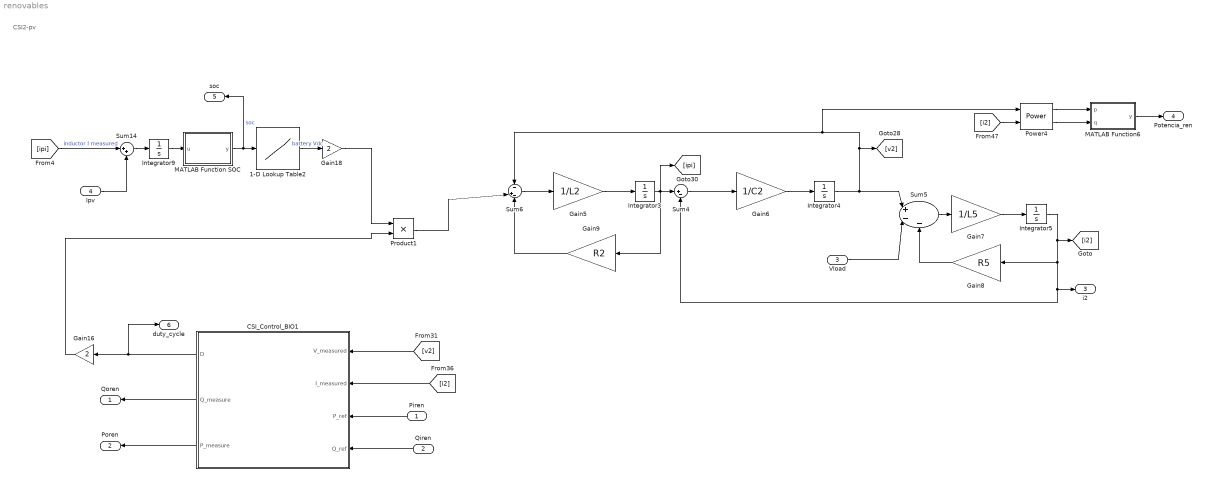
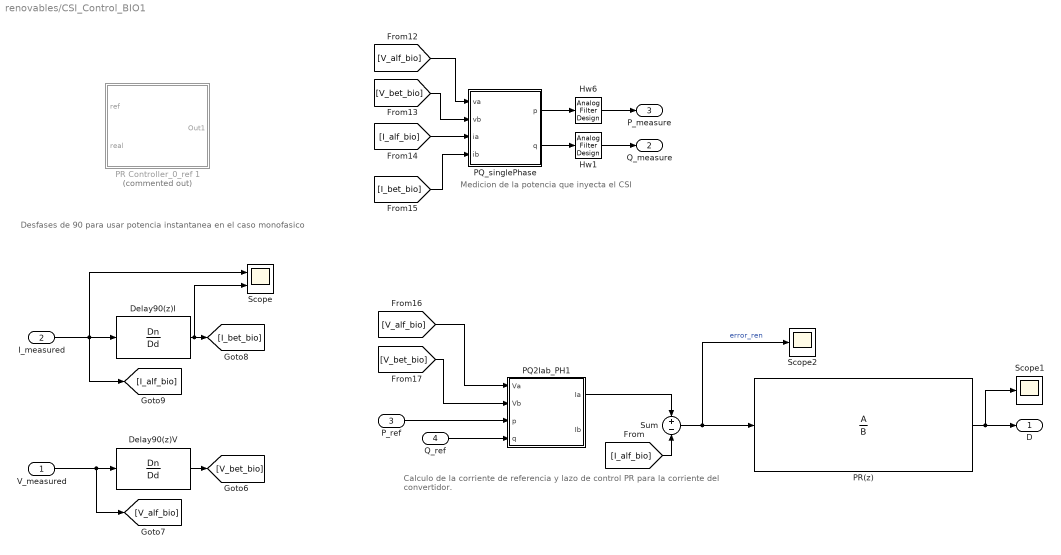
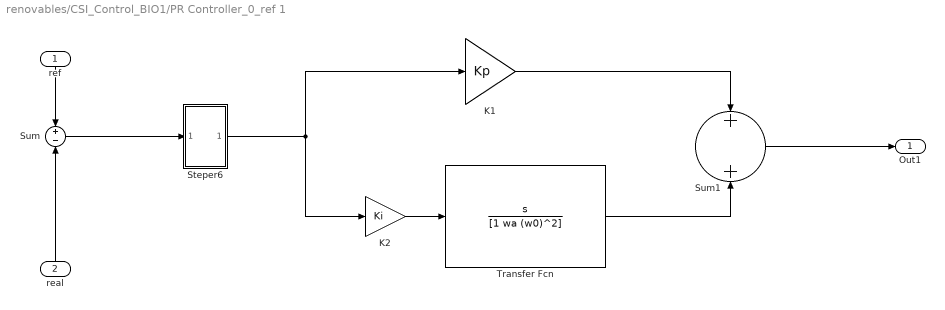
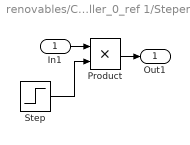
== matlab function renovables/CSI_Control_BIO1/PQ2Iab_PH1 ==
function [Ia, Ib] = fcn(Va, Vb, p, q)
%#codegen
% Ia=0;
% Ib=0;
% divide by zero protection
if(abs((Va^2+Vb^2))<=1000*eps(0))
    det = 1/eps(0);
else
    det = 1/(Va^2+Vb^2); % constante auxiliar
end
%det = 1/(Va^2+Vb^2);

Mat = det*[Va Vb; Vb -Va];

Iab = Mat*[2*p;2*q];

Iaaux = Iab(1);
Ibaux = Iab(2);

ilim=1e3;

if(Iaaux>ilim)
    Iaaux=ilim;
end
if(Iaaux<-ilim)
    Iaaux =-ilim;    
end

if(isnan(Iaaux))
    Iaaux=0;
end
%-----------------


if(Ibaux>ilim)
    Ibaux=ilim;
end
if(Ibaux<-ilim)
    Ibaux =-ilim;    
end

if(isnan(Ibaux))
    Ibaux=0;
end
%-----------------


Ia = Iaaux;
Ib = Ibaux;

== matlab function renovables/CSI_Control_BIO1/PQ_singlePhase ==
function [p, q] = fcn(va, vb, ia, ib)
% Esta funcion calcula la potencia activa y reactiva instantanea
% para el caso mnosofasico. En la revision de 2 papers he observado
% que una manera de extender la teoria de potencia al caso monofasico
% es asumiendo la tension o corriente de una fase como la componente
% alpha y hacer un desfase de 90 grados para obtener una version
% artificial de beta.

paux=va*ia+vb*ib;
if(paux > 20e4)
    paux = 20e4;
end
if(paux < -20e4)
    paux = -20e-4;
end

p = paux/2; % potencia activa instantanea

qaux = vb*ia-va*ib;

if(qaux>20e4)
    qaux=20e4;
end
if(qaux<-20e4)
    qaux=-20e4;
end

q = qaux/2; % potencia reactiva instantanea

== matlab function renovables/MATLAB Function SOC  ==
function y = fcn(u)

y = -0.03536*u+100;

== matlab function renovables/MATLAB Function6 ==
function y = fcn(p,q)

y = sqrt(p^2+q^2);

/*
 * File: renovables.c
 *
 * Code generated for Simulink model 'renovables'.
 *
 * Model version                  : 1.7
 * Simulink Coder version         : 8.14 (R2018a) 06-Feb-2018
 * C/C++ source code generated on : Fri Nov 29 12:13:17 2019
 *
 * Target selection: ert.tlc
 * Embedded hardware selection: Intel->x86-64 (Windows64)
 * Code generation objectives: Unspecified
 * Validation result: Not run
 */

#include "renovables.h"
#include "renovables_private.h"

/* Block signals (default storage) */
B_renovables_T renovables_B;

/* Continuous states */
X_renovables_T renovables_X;

/* Block states (default storage) */
DW_renovables_T renovables_DW;

/* External inputs (root inport signals with default storage) */
ExtU_renovables_T renovables_U;

/* External outputs (root outports fed by signals with default storage) */
ExtY_renovables_T renovables_Y;

/* Real-time model */
RT_MODEL_renovables_T renovables_M_;
RT_MODEL_renovables_T *const renovables_M = &renovables_M_;

/*
 * Time delay interpolation routine
 *
 * The linear interpolation is performed using the formula:
 *
 *          (t2 - tMinusDelay)         (tMinusDelay - t1)
 * u(t)  =  ----------------- * u1  +  ------------------- * u2
 *              (t2 - t1)                  (t2 - t1)
 */
real_T rt_TDelayInterpolate(
  real_T tMinusDelay,                  /* tMinusDelay = currentSimTime - delay */
  real_T tStart,
  real_T *tBuf,
  real_T *uBuf,
  int_T bufSz,
  int_T *lastIdx,
  int_T oldestIdx,
  int_T newIdx,
  real_T initOutput,
  boolean_T discrete,
  boolean_T minorStepAndTAtLastMajorOutput)
{
  int_T i;
  real_T yout, t1, t2, u1, u2;

  /*
   * If there is only one data point in the buffer, this data point must be
   * the t= 0 and tMinusDelay > t0, it ask for something unknown. The best
   * guess if initial output as well
   */
  if ((newIdx == 0) && (oldestIdx ==0 ) && (tMinusDelay > tStart))
    return initOutput;

  /*
   * If tMinusDelay is less than zero, should output initial value
   */
  if (tMinusDelay <= tStart)
    return initOutput;

  /* For fixed buffer extrapolation:
   * if tMinusDelay is small than the time at oldestIdx, if discrete, output
   * tailptr value,  else use tailptr and tailptr+1 value to extrapolate
   * It is also for fixed buffer. Note: The same condition can happen for transport delay block where
   * use tStart and and t[tail] other than using t[tail] and t[tail+1].
   * See below
   */
  if ((tMinusDelay <= tBuf[oldestIdx] ) ) {
    if (discrete) {
      return(uBuf[oldestIdx]);
    } else {
      int_T tempIdx= oldestIdx + 1;
      if (oldestIdx == bufSz-1)
        tempIdx = 0;
      t1= tBuf[oldestIdx];
      t2= tBuf[tempIdx];
      u1= uBuf[oldestIdx];
      u2= uBuf[tempIdx];
      if (t2 == t1) {
        if (tMinusDelay >= t2) {
          yout = u2;
        } else {
          yout = u1;
        }
      } else {
        real_T f1 = (t2-tMinusDelay) / (t2-t1);
        real_T f2 = 1.0 - f1;

        /*
         * Use Lagrange's interpolation formula.  Exact outputs at t1, t2.
         */
        yout = f1*u1 + f2*u2;
      }

      return yout;
    }
  }

  /*
   * When block does not have direct feedthrough, we use the table of
   * values to extrapolate off the end of the table for delays that are less
   * than 0 (less then step size).  This is not completely accurate.  The
   * chain of events is as follows for a given time t.  Major output - look
   * in table.  Update - add entry to table.  Now, if we call the output at
   * time t again, there is a new entry in the table. For very small delays,
   * this means that we will have a different answer from the previous call
   * to the output fcn at the same time t.  The following code prevents this
   * from happening.
   */
  if (minorStepAndTAtLastMajorOutput) {
    /* pretend that the new entry has not been added to table */
    if (newIdx != 0) {
      if (*lastIdx == newIdx) {
        (*lastIdx)--;
      }

      newIdx--;
    } else {
      if (*lastIdx == newIdx) {
        *lastIdx = bufSz-1;
      }

      newIdx = bufSz - 1;
    }
  }

  i = *lastIdx;
  if (tBuf[i] < tMinusDelay) {
    /* Look forward starting at last index */
    while (tBuf[i] < tMinusDelay) {
      /* May occur if the delay is less than step-size - extrapolate */
      if (i == newIdx)
        break;
      i = ( i < (bufSz-1) ) ? (i+1) : 0;/* move through buffer */
    }
  } else {
    /*
     * Look backwards starting at last index which can happen when the
     * delay time increases.
     */
    while (tBuf[i] >= tMinusDelay) {
      /*
       * Due to the entry condition at top of function, we
       * should never hit the end.
       */
      i = (i > 0) ? i-1 : (bufSz-1);   /* move through buffer */
    }

    i = ( i < (bufSz-1) ) ? (i+1) : 0;
  }

  *lastIdx = i;
  if (discrete) {
    /*
     * tempEps = 128 * eps;
     * localEps = max(tempEps, tempEps*fabs(tBuf[i]))/2;
     */
    double tempEps = (DBL_EPSILON) * 128.0;
    double localEps = tempEps * fabs(tBuf[i]);
    if (tempEps > localEps) {
      localEps = tempEps;
    }

    localEps = localEps / 2.0;
    if (tMinusDelay >= (tBuf[i] - localEps)) {
      yout = uBuf[i];
    } else {
      if (i == 0) {
        yout = uBuf[bufSz-1];
      } else {
        yout = uBuf[i-1];
      }
    }
  } else {
    if (i == 0) {
      t1 = tBuf[bufSz-1];
      u1 = uBuf[bufSz-1];
    } else {
      t1 = tBuf[i-1];
      u1 = uBuf[i-1];
    }

    t2 = tBuf[i];
    u2 = uBuf[i];
    if (t2 == t1) {
      if (tMinusDelay >= t2) {
        yout = u2;
      } else {
        yout = u1;
      }
    } else {
      real_T f1 = (t2-tMinusDelay) / (t2-t1);
      real_T f2 = 1.0 - f1;

      /*
       * Use Lagrange's interpolation formula.  Exact outputs at t1, t2.
       */
      yout = f1*u1 + f2*u2;
    }
  }

  return(yout);
}

real_T look1_binlxpw(real_T u0, const real_T bp0[], const real_T table[],
                     uint32_T maxIndex)
{
  real_T frac;
  uint32_T iRght;
  uint32_T iLeft;
  uint32_T bpIdx;

  /* Lookup 1-D
     Search method: 'binary'
     Use previous index: 'off'
     Interpolation method: 'Linear point-slope'
     Extrapolation method: 'Linear'
     Use last breakpoint for index at or above upper limit: 'off'
     Remove protection against out-of-range input in generated code: 'off'
   */
  /* Prelookup - Index and Fraction
     Index Search method: 'binary'
     Extrapolation method: 'Linear'
     Use previous index: 'off'
     Use last breakpoint for index at or above upper limit: 'off'
     Remove protection against out-of-range input in generated code: 'off'
   */
  if (u0 <= bp0[0U]) {
    iLeft = 0U;
    frac = (u0 - bp0[0U]) / (bp0[1U] - bp0[0U]);
  } else if (u0 < bp0[maxIndex]) {
    /* Binary Search */
    bpIdx = maxIndex >> 1U;
    iLeft = 0U;
    iRght = maxIndex;
    while (iRght - iLeft > 1U) {
      if (u0 < bp0[bpIdx]) {
        iRght = bpIdx;
      } else {
        iLeft = bpIdx;
      }

      bpIdx = (iRght + iLeft) >> 1U;
    }

    frac = (u0 - bp0[iLeft]) / (bp0[iLeft + 1U] - bp0[iLeft]);
  } else {
    iLeft = maxIndex - 1U;
    frac = (u0 - bp0[maxIndex - 1U]) / (bp0[maxIndex] - bp0[maxIndex - 1U]);
  }

  /* Interpolation 1-D
     Interpolation method: 'Linear point-slope'
     Use last breakpoint for index at or above upper limit: 'off'
     Overflow mode: 'portable wrapping'
   */
  return (table[iLeft + 1U] - table[iLeft]) * frac + table[iLeft];
}

/* This function updates continuous states using the ODE8 fixed-step
 * solver algorithm
 */
static void rt_ertODEUpdateContinuousStates(RTWSolverInfo *si )
{
  /* Solver Matrices */
#define renovables_NSTAGES             13

  static real_T rt_ODE8_B[13] = {
    4.174749114153025E-2, 0.0, 0.0, 0.0,
    0.0, -5.54523286112393E-2, 2.393128072011801E-1, 7.03510669403443E-1,
    -7.597596138144609E-1, 6.605630309222863E-1, 1.581874825101233E-1,
    -2.381095387528628E-1, 2.5E-1
  };

  static real_T rt_ODE8_C[13] = {
    0.0, 5.555555555555556E-2, 8.333333333333333E-2, 1.25E-1,
    3.125E-1, 3.75E-1, 1.475E-1, 4.65E-1,
    5.648654513822596E-1, 6.5E-1, 9.246562776405044E-1, 1.0, 1.0
  };

  static real_T rt_ODE8_A[13][13] = {
    /* rt_ODE8_A[0][] */
    { 0.0, 0.0, 0.0, 0.0,
      0.0, 0.0, 0.0, 0.0,
      0.0, 0.0, 0.0, 0.0, 0.0 },

    /* rt_ODE8_A[1][] */
    { 5.555555555555556E-2, 0.0, 0.0, 0.0,
      0.0, 0.0, 0.0, 0.0,
      0.0, 0.0, 0.0, 0.0, 0.0 },

    /* rt_ODE8_A[2][] */
    { 2.083333333333333E-2, 6.25E-2, 0.0, 0.0,
      0.0, 0.0, 0.0, 0.0,
      0.0, 0.0, 0.0, 0.0, 0.0 },

    /* rt_ODE8_A[3][] */
    { 3.125E-2, 0.0, 9.375E-2, 0.0,
      0.0, 0.0, 0.0, 0.0,
      0.0, 0.0, 0.0, 0.0, 0.0 },

    /* rt_ODE8_A[4][] */
    { 3.125E-1, 0.0, -1.171875, 1.171875,
      0.0, 0.0, 0.0, 0.0,
      0.0, 0.0, 0.0, 0.0, 0.0 },

    /* rt_ODE8_A[5][] */
    { 3.75E-2, 0.0, 0.0, 1.875E-1,
      1.5E-1, 0.0, 0.0, 0.0,
      0.0, 0.0, 0.0, 0.0, 0.0 },

    /* rt_ODE8_A[6][] */
    { 4.791013711111111E-2, 0.0, 0.0, 1.122487127777778E-1,
      -2.550567377777778E-2, 1.284682388888889E-2, 0.0, 0.0,
      0.0, 0.0, 0.0, 0.0, 0.0 },

    /* rt_ODE8_A[7][] */
    { 1.691798978729228E-2, 0.0, 0.0, 3.878482784860432E-1,
      3.597736985150033E-2, 1.969702142156661E-1, -1.727138523405018E-1, 0.0,
      0.0, 0.0, 0.0, 0.0, 0.0 },

    /* rt_ODE8_A[8][] */
    { 6.90957533591923E-2, 0.0, 0.0, -6.342479767288542E-1,
      -1.611975752246041E-1, 1.386503094588253E-1, 9.409286140357563E-1,
      2.11636326481944E-1,
      0.0, 0.0, 0.0, 0.0, 0.0 },

    /* rt_ODE8_A[9][] */
    { 1.835569968390454E-1, 0.0, 0.0, -2.468768084315592,
      -2.912868878163005E-1, -2.647302023311738E-2, 2.8478387641928,
      2.813873314698498E-1,
      1.237448998633147E-1, 0.0, 0.0, 0.0, 0.0 },

    /* rt_ODE8_A[10][] */
    { -1.215424817395888, 0.0, 0.0, 1.667260866594577E1,
      9.157418284168179E-1, -6.056605804357471, -1.600357359415618E1,
      1.484930308629766E1,
      -1.337157573528985E1, 5.134182648179638, 0.0, 0.0, 0.0 },

    /* rt_ODE8_A[11][] */
    { 2.588609164382643E-1, 0.0, 0.0, -4.774485785489205,
      -4.350930137770325E-1, -3.049483332072241, 5.577920039936099,
      6.155831589861039,
      -5.062104586736938, 2.193926173180679, 1.346279986593349E-1, 0.0, 0.0 },

    /* rt_ODE8_A[12][] */
    { 8.224275996265075E-1, 0.0, 0.0, -1.165867325727766E1,
      -7.576221166909362E-1, 7.139735881595818E-1, 1.207577498689006E1,
      -2.127659113920403,
      1.990166207048956, -2.342864715440405E-1, 1.758985777079423E-1, 0.0, 0.0 },
  };

  time_T t = rtsiGetT(si);
  time_T tnew = rtsiGetSolverStopTime(si);
  time_T h = rtsiGetStepSize(si);
  real_T *x = rtsiGetContStates(si);
  ODE8_IntgData *intgData = (ODE8_IntgData *) rtsiGetSolverData(si);
  real_T *deltaY = intgData->deltaY;
  real_T *x0 = intgData->x0;
  real_T* f[renovables_NSTAGES];
  int idx,stagesIdx,statesIdx;
  double deltaX;
  int_T nXc = 16;
  rtsiSetSimTimeStep(si,MINOR_TIME_STEP);
  f[0] = intgData->f[0];
  f[1] = intgData->f[1];
  f[2] = intgData->f[2];
  f[3] = intgData->f[3];
  f[4] = intgData->f[4];
  f[5] = intgData->f[5];
  f[6] = intgData->f[6];
  f[7] = intgData->f[7];
  f[8] = intgData->f[8];
  f[9] = intgData->f[9];
  f[10] = intgData->f[10];
  f[11] = intgData->f[11];
  f[12] = intgData->f[12];

  /* Save the state values at time t in y and x0*/
  (void) memset(deltaY, 0,
                (uint_T)nXc*sizeof(real_T));
  (void) memcpy(x0, x,
                nXc*sizeof(real_T));
  for (stagesIdx=0;stagesIdx<renovables_NSTAGES;stagesIdx++) {
    (void) memcpy(x, x0,
                  (uint_T)nXc*sizeof(real_T));
    for (statesIdx=0;statesIdx<nXc;statesIdx++) {
      deltaX = 0;
      for (idx=0;idx<stagesIdx;idx++) {
        deltaX = deltaX + h*rt_ODE8_A[stagesIdx][idx]*f[idx][statesIdx];
      }

      x[statesIdx] = x0[statesIdx] + deltaX;
    }

    if (stagesIdx==0) {
      rtsiSetdX(si, f[stagesIdx]);
      renovables_derivatives();
    } else {
      (stagesIdx==renovables_NSTAGES-1)? rtsiSetT(si, tnew) : rtsiSetT(si, t + h*
        rt_ODE8_C[stagesIdx]);
      rtsiSetdX(si, f[stagesIdx]);
      renovables_step();
      renovables_derivatives();
    }

    for (statesIdx=0;statesIdx<nXc;statesIdx++) {
      deltaY[statesIdx] = deltaY[statesIdx] + h*rt_ODE8_B[stagesIdx]*f[stagesIdx]
        [statesIdx];
    }
  }

  for (statesIdx=0;statesIdx<nXc;statesIdx++) {
    x[statesIdx] = x0[statesIdx] + deltaY[statesIdx];
  }

  rtsiSetSimTimeStep(si,MAJOR_TIME_STEP);
}

real_T rt_hypotd_snf(real_T u0, real_T u1)
{
  real_T y;
  real_T a;
  a = fabs(u0);
  y = fabs(u1);
  if (a < y) {
    a /= y;
    y *= sqrt(a * a + 1.0);
  } else if (a > y) {
    y /= a;
    y = sqrt(y * y + 1.0) * a;
  } else {
    if (!rtIsNaN(y)) {
      y = a * 1.4142135623730951;
    }
  }

  return y;
}

real_T rt_atan2d_snf(real_T u0, real_T u1)
{
  real_T y;
  int32_T u0_0;
  int32_T u1_0;
  if (rtIsNaN(u0) || rtIsNaN(u1)) {
    y = (rtNaN);
  } else if (rtIsInf(u0) && rtIsInf(u1)) {
    if (u0 > 0.0) {
      u0_0 = 1;
    } else {
      u0_0 = -1;
    }

    if (u1 > 0.0) {
      u1_0 = 1;
    } else {
      u1_0 = -1;
    }

    y = atan2(u0_0, u1_0);
  } else if (u1 == 0.0) {
    if (u0 > 0.0) {
      y = RT_PI / 2.0;
    } else if (u0 < 0.0) {
      y = -(RT_PI / 2.0);
    } else {
      y = 0.0;
    }
  } else {
    y = atan2(u0, u1);
  }

  return y;
}

/* Model step function */
void renovables_step(void)
{
  /* local block i/o variables */
  real_T rtb_integrator;
  real_T rtb_TransportDelay;
  real_T rtb_integrator_h;
  real_T rtb_TransportDelay_j;
  real_T rtb_integrator_c;
  real_T rtb_TransportDelay_m;
  real_T rtb_integrator_d;
  real_T rtb_TransportDelay_g;
  real_T paux;
  real_T rtb_Gain1;
  real_T rtb_phi;
  if (rtmIsMajorTimeStep(renovables_M)) {
    /* set solver stop time */
    rtsiSetSolverStopTime(&renovables_M->solverInfo,
                          ((renovables_M->Timing.clockTick0+1)*
      renovables_M->Timing.stepSize0));
  }                                    /* end MajorTimeStep */

  /* Update absolute time of base rate at minor time step */
  if (rtmIsMinorTimeStep(renovables_M)) {
    renovables_M->Timing.t[0] = rtsiGetT(&renovables_M->solverInfo);
  }

  /* Outport: '<Root>/Qoren' incorporates:
   *  StateSpace: '<S1>/Hw1'
   */
  renovables_Y.Qoren = 0.94444980822600488 * renovables_X.Hw1_CSTATE[3];

  /* Outport: '<Root>/Poren' incorporates:
   *  StateSpace: '<S1>/Hw6'
   */
  renovables_Y.Poren = 0.94444980822600488 * renovables_X.Hw6_CSTATE[3];

  /* Outport: '<Root>/i2' incorporates:
   *  Integrator: '<Root>/Integrator5'
   */
  renovables_Y.i2 = renovables_X.Integrator5_CSTATE;
  if (rtmIsMajorTimeStep(renovables_M)) {
    /* DiscreteTransferFcn: '<S1>/Delay90(z)I' incorporates:
     *  Integrator: '<Root>/Integrator5'
     */
    renovables_DW.Delay90zI_tmp = renovables_X.Integrator5_CSTATE - -0.96364 *
      renovables_DW.Delay90zI_states;
    renovables_B.Delay90zI = -1.0364 * renovables_DW.Delay90zI_states +
      renovables_DW.Delay90zI_tmp;

    /* DiscreteTransferFcn: '<S1>/Delay90(z)V' incorporates:
     *  Integrator: '<Root>/Integrator4'
     */
    renovables_DW.Delay90zV_tmp = renovables_X.Integrator4_CSTATE - -0.96364 *
      renovables_DW.Delay90zV_states;
    renovables_B.Delay90zV = -1.0364 * renovables_DW.Delay90zV_states +
      renovables_DW.Delay90zV_tmp;
  }

  /* MATLAB Function: '<S1>/PQ_singlePhase' incorporates:
   *  Integrator: '<Root>/Integrator4'
   *  Integrator: '<Root>/Integrator5'
   */
  paux = renovables_X.Integrator4_CSTATE * renovables_X.Integrator5_CSTATE +
    renovables_B.Delay90zV * renovables_B.Delay90zI;
  if (paux > 200000.0) {
    paux = 200000.0;
  }

  if (paux < -200000.0) {
    paux = -0.002;
  }

  renovables_B.p = paux / 2.0;
  paux = renovables_B.Delay90zV * renovables_X.Integrator5_CSTATE -
    renovables_X.Integrator4_CSTATE * renovables_B.Delay90zI;
  if (paux > 200000.0) {
    paux = 200000.0;
  }

  if (paux < -200000.0) {
    paux = -200000.0;
  }

  renovables_B.q = paux / 2.0;

  /* End of MATLAB Function: '<S1>/PQ_singlePhase' */

  /* MATLAB Function: '<S1>/PQ2Iab_PH1' incorporates:
   *  Inport: '<Root>/Piren'
   *  Inport: '<Root>/Qiren'
   *  Integrator: '<Root>/Integrator4'
   */
  paux = renovables_X.Integrator4_CSTATE * renovables_X.Integrator4_CSTATE +
    renovables_B.Delay90zV * renovables_B.Delay90zV;
  if (fabs(paux) <= 4.94065645841247E-321) {
    paux = (rtInf);
  } else {
    paux = 1.0 / paux;
  }

  paux = paux * renovables_X.Integrator4_CSTATE * (2.0 * renovables_U.Piren) +
    paux * renovables_B.Delay90zV * (2.0 * renovables_U.Qiren);
  if (paux > 1000.0) {
    paux = 1000.0;
  }

  if (paux < -1000.0) {
    paux = -1000.0;
  }

  if (rtIsNaN(paux)) {
    paux = 0.0;
  }

  if (rtmIsMajorTimeStep(renovables_M)) {
    /* DiscreteTransferFcn: '<S1>/PR(z)' incorporates:
     *  Integrator: '<Root>/Integrator5'
     *  MATLAB Function: '<S1>/PQ2Iab_PH1'
     *  Sum: '<S1>/Sum'
     */
    renovables_DW.PRz_tmp = ((paux - renovables_X.Integrator5_CSTATE) - -1.9966 *
      renovables_DW.PRz_states[0]) - 0.998 * renovables_DW.PRz_states[1];
    renovables_Y.duty_cycle = (0.0201 * renovables_DW.PRz_tmp + -0.039932 *
      renovables_DW.PRz_states[0]) + 0.01986 * renovables_DW.PRz_states[1];

    /* Gain: '<Root>/Gain16' incorporates:
     *  DiscreteTransferFcn: '<S1>/PR(z)'
     */
    renovables_B.Gain16 = 2.0 * renovables_Y.duty_cycle;
  }

  /* Integrator: '<Root>/Integrator9' */
  /* Limited  Integrator  */
  if (renovables_X.Integrator9_CSTATE >= 1.0) {
    renovables_X.Integrator9_CSTATE = 1.0;
  } else {
    if (renovables_X.Integrator9_CSTATE <= 0.0) {
      renovables_X.Integrator9_CSTATE = 0.0;
    }
  }

  /* MATLAB Function: '<Root>/MATLAB Function SOC ' incorporates:
   *  Integrator: '<Root>/Integrator9'
   */
  renovables_Y.soc = -0.03536 * renovables_X.Integrator9_CSTATE + 100.0;

  /* Gain: '<Root>/Gain5' incorporates:
   *  Gain: '<Root>/Gain18'
   *  Gain: '<Root>/Gain9'
   *  Integrator: '<Root>/Integrator3'
   *  Integrator: '<Root>/Integrator4'
   *  Lookup_n-D: '<Root>/1-D Lookup Table2'
   *  Product: '<Root>/Product1'
   *  Sum: '<Root>/Sum6'
   */
  renovables_B.Gain5 = ((2.0 * look1_binlxpw(renovables_Y.soc,
    renovables_ConstP.uDLookupTable2_bp01Data,
    renovables_ConstP.uDLookupTable2_tableData, 8U) * renovables_B.Gain16 -
    renovables_X.Integrator4_CSTATE) - 0.2 * renovables_X.Integrator3_CSTATE) *
    33.333333333333336;

  /* Gain: '<Root>/Gain6' incorporates:
   *  Integrator: '<Root>/Integrator3'
   *  Integrator: '<Root>/Integrator5'
   *  Sum: '<Root>/Sum4'
   */
  renovables_B.Gain6 = (renovables_X.Integrator3_CSTATE -
                        renovables_X.Integrator5_CSTATE) * 45454.545454545456;

  /* Sum: '<Root>/Sum14' incorporates:
   *  Inport: '<Root>/Ipv'
   *  Integrator: '<Root>/Integrator3'
   */
  renovables_B.Sum14 = renovables_X.Integrator3_CSTATE + renovables_U.Ipv;

  /* Sin: '<S9>/sin(wt)' incorporates:
   *  Sin: '<S10>/sin(wt)'
   *  Sin: '<S9>/cos(wt)'
   */
  rtb_Gain1 = 376.99111843077515 * renovables_M->Timing.t[0];
  paux = sin(rtb_Gain1) * 2.0;

  /* Product: '<S9>/Product' incorporates:
   *  Integrator: '<Root>/Integrator4'
   *  Sin: '<S9>/sin(wt)'
   */
  renovables_B.Product = paux * renovables_X.Integrator4_CSTATE;

  /* Sin: '<S9>/cos(wt)' incorporates:
   *  Sin: '<S10>/cos(wt)'
   */
  rtb_Gain1 = sin(rtb_Gain1 + 1.5707963267948966) * 2.0;

  /* Product: '<S9>/Product1' incorporates:
   *  Integrator: '<Root>/Integrator4'
   *  Sin: '<S9>/cos(wt)'
   */
  renovables_B.Product1 = rtb_Gain1 * renovables_X.Integrator4_CSTATE;

  /* Gain: '<Root>/Gain7' incorporates:
   *  Gain: '<Root>/Gain8'
   *  Inport: '<Root>/Vload'
   *  Integrator: '<Root>/Integrator4'
   *  Integrator: '<Root>/Integrator5'
   *  Sum: '<Root>/Sum5'
   */
  renovables_B.Gain7 = ((renovables_X.Integrator4_CSTATE - renovables_U.Vload) -
                        0.0012 * renovables_X.Integrator5_CSTATE) *
    45454.545454545456;

  /* Product: '<S10>/Product' incorporates:
   *  Integrator: '<Root>/Integrator5'
   */
  renovables_B.Product_d = paux * renovables_X.Integrator5_CSTATE;

  /* Product: '<S10>/Product1' incorporates:
   *  Integrator: '<Root>/Integrator5'
   */
  renovables_B.Product1_p = rtb_Gain1 * renovables_X.Integrator5_CSTATE;

  /* Integrator: '<S14>/integrator' */
  rtb_integrator = renovables_X.integrator_CSTATE;

  /* TransportDelay: '<S14>/Transport Delay' */
  {
    real_T **uBuffer = (real_T**)
      &renovables_DW.TransportDelay_PWORK.TUbufferPtrs[0];
    real_T **tBuffer = (real_T**)
      &renovables_DW.TransportDelay_PWORK.TUbufferPtrs[1];
    real_T simTime = renovables_M->Timing.t[0];
    real_T tMinusDelay = simTime - (0.016666666666666666);
    rtb_TransportDelay = rt_TDelayInterpolate(
      tMinusDelay,
      0.0,
      *tBuffer,
      *uBuffer,
      renovables_DW.TransportDelay_IWORK.CircularBufSize,
      &renovables_DW.TransportDelay_IWORK.Last,
      renovables_DW.TransportDelay_IWORK.Tail,
      renovables_DW.TransportDelay_IWORK.Head,
      0.0,
      0,
      0);
  }

  if (rtmIsMajorTimeStep(renovables_M)) {
    /* Memory: '<S14>/Memory' */
    renovables_B.Memory = renovables_DW.Memory_PreviousInput;
  }

  /* Switch: '<S14>/Switch' incorporates:
   *  Clock: '<S14>/Clock'
   *  Constant: '<S14>/K1'
   *  Gain: '<S14>/Gain'
   *  RelationalOperator: '<S14>/Relational Operator'
   *  Sum: '<S14>/Sum'
   */
  if (renovables_M->Timing.t[0] >= 0.016666666666666666) {
    renovables_B.Switch = (rtb_integrator - rtb_TransportDelay) * 60.0;
  } else {
    renovables_B.Switch = renovables_B.Memory;
  }

  /* End of Switch: '<S14>/Switch' */

  /* Integrator: '<S13>/integrator' */
  rtb_integrator_h = renovables_X.integrator_CSTATE_n;

  /* TransportDelay: '<S13>/Transport Delay' */
  {
    real_T **uBuffer = (real_T**)
      &renovables_DW.TransportDelay_PWORK_d.TUbufferPtrs[0];
    real_T **tBuffer = (real_T**)
      &renovables_DW.TransportDelay_PWORK_d.TUbufferPtrs[1];
    real_T simTime = renovables_M->Timing.t[0];
    real_T tMinusDelay = simTime - (0.016666666666666666);
    rtb_TransportDelay_j = rt_TDelayInterpolate(
      tMinusDelay,
      0.0,
      *tBuffer,
      *uBuffer,
      renovables_DW.TransportDelay_IWORK_f.CircularBufSize,
      &renovables_DW.TransportDelay_IWORK_f.Last,
      renovables_DW.TransportDelay_IWORK_f.Tail,
      renovables_DW.TransportDelay_IWORK_f.Head,
      0.0,
      0,
      0);
  }

  if (rtmIsMajorTimeStep(renovables_M)) {
    /* Memory: '<S13>/Memory' */
    renovables_B.Memory_e = renovables_DW.Memory_PreviousInput_b;
  }

  /* Switch: '<S13>/Switch' incorporates:
   *  Clock: '<S13>/Clock'
   *  Constant: '<S13>/K1'
   *  Gain: '<S13>/Gain'
   *  RelationalOperator: '<S13>/Relational Operator'
   *  Sum: '<S13>/Sum'
   */
  if (renovables_M->Timing.t[0] >= 0.016666666666666666) {
    renovables_B.Switch_i = (rtb_integrator_h - rtb_TransportDelay_j) * 60.0;
  } else {
    renovables_B.Switch_i = renovables_B.Memory_e;
  }

  /* End of Switch: '<S13>/Switch' */

  /* Integrator: '<S18>/integrator' */
  rtb_integrator_c = renovables_X.integrator_CSTATE_d;

  /* TransportDelay: '<S18>/Transport Delay' */
  {
    real_T **uBuffer = (real_T**)
      &renovables_DW.TransportDelay_PWORK_n.TUbufferPtrs[0];
    real_T **tBuffer = (real_T**)
      &renovables_DW.TransportDelay_PWORK_n.TUbufferPtrs[1];
    real_T simTime = renovables_M->Timing.t[0];
    real_T tMinusDelay = simTime - (0.016666666666666666);
    rtb_TransportDelay_m = rt_TDelayInterpolate(
      tMinusDelay,
      0.0,
      *tBuffer,
      *uBuffer,
      renovables_DW.TransportDelay_IWORK_n.CircularBufSize,
      &renovables_DW.TransportDelay_IWORK_n.Last,
      renovables_DW.TransportDelay_IWORK_n.Tail,
      renovables_DW.TransportDelay_IWORK_n.Head,
      0.0,
      0,
      0);
  }

  if (rtmIsMajorTimeStep(renovables_M)) {
    /* Memory: '<S18>/Memory' */
    renovables_B.Memory_e4 = renovables_DW.Memory_PreviousInput_m;
  }

  /* Switch: '<S18>/Switch' incorporates:
   *  Clock: '<S18>/Clock'
   *  Constant: '<S18>/K1'
   *  Gain: '<S18>/Gain'
   *  RelationalOperator: '<S18>/Relational Operator'
   *  Sum: '<S18>/Sum'
   */
  if (renovables_M->Timing.t[0] >= 0.016666666666666666) {
    renovables_B.Switch_f = (rtb_integrator_c - rtb_TransportDelay_m) * 60.0;
  } else {
    renovables_B.Switch_f = renovables_B.Memory_e4;
  }

  /* End of Switch: '<S18>/Switch' */

  /* Integrator: '<S17>/integrator' */
  rtb_integrator_d = renovables_X.integrator_CSTATE_j;

  /* TransportDelay: '<S17>/Transport Delay' */
  {
    real_T **uBuffer = (real_T**)
      &renovables_DW.TransportDelay_PWORK_o.TUbufferPtrs[0];
    real_T **tBuffer = (real_T**)
      &renovables_DW.TransportDelay_PWORK_o.TUbufferPtrs[1];
    real_T simTime = renovables_M->Timing.t[0];
    real_T tMinusDelay = simTime - (0.016666666666666666);
    rtb_TransportDelay_g = rt_TDelayInterpolate(
      tMinusDelay,
      0.0,
      *tBuffer,
      *uBuffer,
      renovables_DW.TransportDelay_IWORK_g.CircularBufSize,
      &renovables_DW.TransportDelay_IWORK_g.Last,
      renovables_DW.TransportDelay_IWORK_g.Tail,
      renovables_DW.TransportDelay_IWORK_g.Head,
      0.0,
      0,
      0);
  }

  if (rtmIsMajorTimeStep(renovables_M)) {
    /* Memory: '<S17>/Memory' */
    renovables_B.Memory_g = renovables_DW.Memory_PreviousInput_i;
  }

  /* Switch: '<S17>/Switch' incorporates:
   *  Clock: '<S17>/Clock'
   *  Constant: '<S17>/K1'
   *  Gain: '<S17>/Gain'
   *  RelationalOperator: '<S17>/Relational Operator'
   *  Sum: '<S17>/Sum'
   */
  if (renovables_M->Timing.t[0] >= 0.016666666666666666) {
    renovables_B.Switch_n = (rtb_integrator_d - rtb_TransportDelay_g) * 60.0;
  } else {
    renovables_B.Switch_n = renovables_B.Memory_g;
  }

  /* End of Switch: '<S17>/Switch' */

  /* Gain: '<S4>/Gain1' incorporates:
   *  ComplexToMagnitudeAngle: '<S10>/Complex to Magnitude-Angle'
   *  ComplexToMagnitudeAngle: '<S9>/Complex to Magnitude-Angle'
   *  Product: '<S4>/Product'
   *  RealImagToComplex: '<S10>/Real-Imag to Complex'
   *  RealImagToComplex: '<S9>/Real-Imag to Complex'
   */
  rtb_Gain1 = rt_hypotd_snf(renovables_B.Switch, renovables_B.Switch_i) *
    rt_hypotd_snf(renovables_B.Switch_f, renovables_B.Switch_n) * 0.5;

  /* Gain: '<S4>/Deg->Rad' incorporates:
   *  ComplexToMagnitudeAngle: '<S10>/Complex to Magnitude-Angle'
   *  ComplexToMagnitudeAngle: '<S9>/Complex to Magnitude-Angle'
   *  Gain: '<S10>/Rad->Deg.'
   *  Gain: '<S9>/Rad->Deg.'
   *  RealImagToComplex: '<S10>/Real-Imag to Complex'
   *  RealImagToComplex: '<S9>/Real-Imag to Complex'
   *  Sum: '<S4>/Sum'
   */
  rtb_phi = (57.295779513082323 * rt_atan2d_snf(renovables_B.Switch_i,
              renovables_B.Switch) - 57.295779513082323 * rt_atan2d_snf
             (renovables_B.Switch_n, renovables_B.Switch_f)) *
    0.017453292519943295;

  /* Product: '<S4>/Product1' incorporates:
   *  Trigonometry: '<S4>/Trigonometric Function2'
   */
  paux = rtb_Gain1 * cos(rtb_phi);

  /* Product: '<S4>/Product3' incorporates:
   *  Trigonometry: '<S4>/Trigonometric Function2'
   */
  rtb_Gain1 *= sin(rtb_phi);

  /* Outport: '<Root>/Potencia_ren' incorporates:
   *  MATLAB Function: '<Root>/MATLAB Function6'
   */
  renovables_Y.Potencia_ren = sqrt(paux * paux + rtb_Gain1 * rtb_Gain1);
  if (rtmIsMajorTimeStep(renovables_M)) {
    if (rtmIsMajorTimeStep(renovables_M)) {
      /* Update for DiscreteTransferFcn: '<S1>/Delay90(z)I' */
      renovables_DW.Delay90zI_states = renovables_DW.Delay90zI_tmp;

      /* Update for DiscreteTransferFcn: '<S1>/Delay90(z)V' */
      renovables_DW.Delay90zV_states = renovables_DW.Delay90zV_tmp;

      /* Update for DiscreteTransferFcn: '<S1>/PR(z)' */
      renovables_DW.PRz_states[1] = renovables_DW.PRz_states[0];
      renovables_DW.PRz_states[0] = renovables_DW.PRz_tmp;
    }

    /* Update for TransportDelay: '<S14>/Transport Delay' */
    {
      real_T **uBuffer = (real_T**)
        &renovables_DW.TransportDelay_PWORK.TUbufferPtrs[0];
      real_T **tBuffer = (real_T**)
        &renovables_DW.TransportDelay_PWORK.TUbufferPtrs[1];
      real_T simTime = renovables_M->Timing.t[0];
      renovables_DW.TransportDelay_IWORK.Head =
        ((renovables_DW.TransportDelay_IWORK.Head <
          (renovables_DW.TransportDelay_IWORK.CircularBufSize-1)) ?
         (renovables_DW.TransportDelay_IWORK.Head+1) : 0);
      if (renovables_DW.TransportDelay_IWORK.Head ==
          renovables_DW.TransportDelay_IWORK.Tail) {
        renovables_DW.TransportDelay_IWORK.Tail =
          ((renovables_DW.TransportDelay_IWORK.Tail <
            (renovables_DW.TransportDelay_IWORK.CircularBufSize-1)) ?
           (renovables_DW.TransportDelay_IWORK.Tail+1) : 0);
      }

      (*tBuffer)[renovables_DW.TransportDelay_IWORK.Head] = simTime;
      (*uBuffer)[renovables_DW.TransportDelay_IWORK.Head] = rtb_integrator;
    }

    if (rtmIsMajorTimeStep(renovables_M)) {
      /* Update for Memory: '<S14>/Memory' */
      renovables_DW.Memory_PreviousInput = renovables_B.Switch;
    }

    /* Update for TransportDelay: '<S13>/Transport Delay' */
    {
      real_T **uBuffer = (real_T**)
        &renovables_DW.TransportDelay_PWORK_d.TUbufferPtrs[0];
      real_T **tBuffer = (real_T**)
        &renovables_DW.TransportDelay_PWORK_d.TUbufferPtrs[1];
      real_T simTime = renovables_M->Timing.t[0];
      renovables_DW.TransportDelay_IWORK_f.Head =
        ((renovables_DW.TransportDelay_IWORK_f.Head <
          (renovables_DW.TransportDelay_IWORK_f.CircularBufSize-1)) ?
         (renovables_DW.TransportDelay_IWORK_f.Head+1) : 0);
      if (renovables_DW.TransportDelay_IWORK_f.Head ==
          renovables_DW.TransportDelay_IWORK_f.Tail) {
        renovables_DW.TransportDelay_IWORK_f.Tail =
          ((renovables_DW.TransportDelay_IWORK_f.Tail <
            (renovables_DW.TransportDelay_IWORK_f.CircularBufSize-1)) ?
           (renovables_DW.TransportDelay_IWORK_f.Tail+1) : 0);
      }

      (*tBuffer)[renovables_DW.TransportDelay_IWORK_f.Head] = simTime;
      (*uBuffer)[renovables_DW.TransportDelay_IWORK_f.Head] = rtb_integrator_h;
    }

    if (rtmIsMajorTimeStep(renovables_M)) {
      /* Update for Memory: '<S13>/Memory' */
      renovables_DW.Memory_PreviousInput_b = renovables_B.Switch_i;
    }

    /* Update for TransportDelay: '<S18>/Transport Delay' */
    {
      real_T **uBuffer = (real_T**)
        &renovables_DW.TransportDelay_PWORK_n.TUbufferPtrs[0];
      real_T **tBuffer = (real_T**)
        &renovables_DW.TransportDelay_PWORK_n.TUbufferPtrs[1];
      real_T simTime = renovables_M->Timing.t[0];
      renovables_DW.TransportDelay_IWORK_n.Head =
        ((renovables_DW.TransportDelay_IWORK_n.Head <
          (renovables_DW.TransportDelay_IWORK_n.CircularBufSize-1)) ?
         (renovables_DW.TransportDelay_IWORK_n.Head+1) : 0);
      if (renovables_DW.TransportDelay_IWORK_n.Head ==
          renovables_DW.TransportDelay_IWORK_n.Tail) {
        renovables_DW.TransportDelay_IWORK_n.Tail =
          ((renovables_DW.TransportDelay_IWORK_n.Tail <
            (renovables_DW.TransportDelay_IWORK_n.CircularBufSize-1)) ?
           (renovables_DW.TransportDelay_IWORK_n.Tail+1) : 0);
      }

      (*tBuffer)[renovables_DW.TransportDelay_IWORK_n.Head] = simTime;
      (*uBuffer)[renovables_DW.TransportDelay_IWORK_n.Head] = rtb_integrator_c;
    }

    if (rtmIsMajorTimeStep(renovables_M)) {
      /* Update for Memory: '<S18>/Memory' */
      renovables_DW.Memory_PreviousInput_m = renovables_B.Switch_f;
    }

    /* Update for TransportDelay: '<S17>/Transport Delay' */
    {
      real_T **uBuffer = (real_T**)
        &renovables_DW.TransportDelay_PWORK_o.TUbufferPtrs[0];
      real_T **tBuffer = (real_T**)
        &renovables_DW.TransportDelay_PWORK_o.TUbufferPtrs[1];
      real_T simTime = renovables_M->Timing.t[0];
      renovables_DW.TransportDelay_IWORK_g.Head =
        ((renovables_DW.TransportDelay_IWORK_g.Head <
          (renovables_DW.TransportDelay_IWORK_g.CircularBufSize-1)) ?
         (renovables_DW.TransportDelay_IWORK_g.Head+1) : 0);
      if (renovables_DW.TransportDelay_IWORK_g.Head ==
          renovables_DW.TransportDelay_IWORK_g.Tail) {
        renovables_DW.TransportDelay_IWORK_g.Tail =
          ((renovables_DW.TransportDelay_IWORK_g.Tail <
            (renovables_DW.TransportDelay_IWORK_g.CircularBufSize-1)) ?
           (renovables_DW.TransportDelay_IWORK_g.Tail+1) : 0);
      }

      (*tBuffer)[renovables_DW.TransportDelay_IWORK_g.Head] = simTime;
      (*uBuffer)[renovables_DW.TransportDelay_IWORK_g.Head] = rtb_integrator_d;
    }

    if (rtmIsMajorTimeStep(renovables_M)) {
      /* Update for Memory: '<S17>/Memory' */
      renovables_DW.Memory_PreviousInput_i = renovables_B.Switch_n;
    }
  }                                    /* end MajorTimeStep */

  if (rtmIsMajorTimeStep(renovables_M)) {
    rt_ertODEUpdateContinuousStates(&renovables_M->solverInfo);

    /* Update absolute time for base rate */
    /* The "clockTick0" counts the number of times the code of this task has
     * been executed. The absolute time is the multiplication of "clockTick0"
     * and "Timing.stepSize0". Size of "clockTick0" ensures timer will not
     * overflow during the application lifespan selected.
     */
    ++renovables_M->Timing.clockTick0;
    renovables_M->Timing.t[0] = rtsiGetSolverStopTime(&renovables_M->solverInfo);

    {
      /* Update absolute timer for sample time: [0.0001s, 0.0s] */
      /* The "clockTick1" counts the number of times the code of this task has
       * been executed. The resolution of this integer timer is 0.0001, which is the step size
       * of the task. Size of "clockTick1" ensures timer will not overflow during the
       * application lifespan selected.
       */
      renovables_M->Timing.clockTick1++;
    }
  }                                    /* end MajorTimeStep */
}
